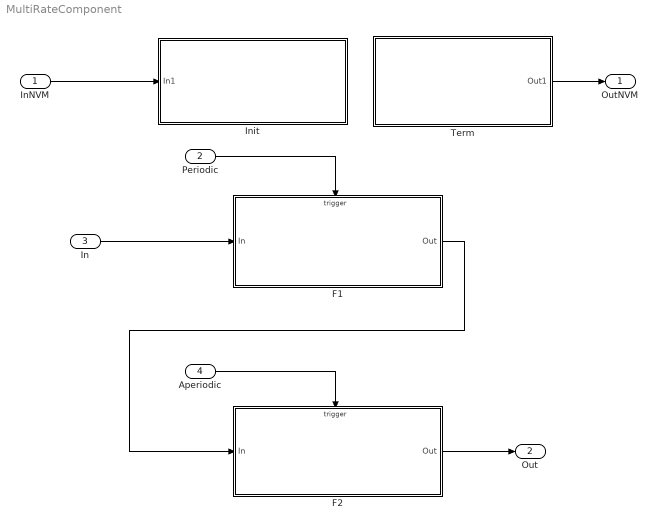
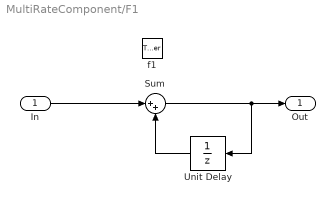
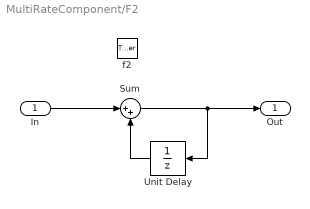
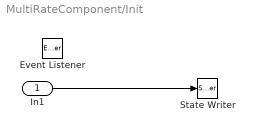
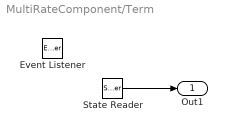
/*
 * File: MultiRateComponent.c
 *
 * Code generated for Simulink model 'MultiRateComponent'.
 *
 * Model version                  : 11.0
 * Simulink Coder version         : 25.2 (R2025b) 28-Jul-2025
 * C/C++ source code generated on : Thu Dec  4 04:23:54 2025
 *
 * Target selection: ert.tlc
 * Embedded hardware selection: Intel->x86-64 (Windows64)
 * Code generation objectives:
 *    1. Execution efficiency
 *    2. Traceability
 * Validation result: Not run
 */

#include "MultiRateComponent.h"
#include "rtwtypes.h"
#include "services.h"

/* Block signals and states (default storage) */
D_Work rtDWork;

/* Model step function for TID1 */
void MultiRateComponent_Periodic(void) /* Explicit Task: Periodic */
{
  real_T rtb_Sum;

  /* RootInportFunctionCallGenerator generated from: '<Root>/Periodic' incorporates:
   *  SubSystem: '<Root>/F1'
   */
  /* Sum: '<S1>/Sum' incorporates:
   *  Inport: '<Root>/In'
   *  UnitDelay: '<S1>/Unit Delay'
   */
  rtb_Sum = get_MultiRateComponent_Periodic_In() + rtDWork.F1State;

  /* Update for UnitDelay: '<S1>/Unit Delay' */
  rtDWork.F1State = rtb_Sum;

  /* End of Outputs for RootInportFunctionCallGenerator generated from: '<Root>/Periodic' */

  /* DataTransferBlock generated from: '<Root>/F1' */
  set_MultiRateComponent_Periodic_DataTransferAtF1Outport1(rtb_Sum);
}

/* Output function */
void MultiRateComponent_Aperiodic(void)
{
  real_T Out;

  /* RootInportFunctionCallGenerator generated from: '<Root>/Aperiodic' incorporates:
   *  SubSystem: '<Root>/F2'
   */
  /* Outport: '<Root>/Out' incorporates:
   *  DataTransferBlock generated from: '<Root>/F1'
   *  Sum: '<S2>/Sum'
   *  UnitDelay: '<S2>/Unit Delay'
   */
  Out = get_MultiRateComponent_Aperiodic_DataTransferAtF1Outport1() +
    rtDWork.F2State;

  /* Update for UnitDelay: '<S2>/Unit Delay' incorporates:
   *  Outport: '<Root>/Out'
   */
  rtDWork.F2State = Out;

  /* End of Outputs for RootInportFunctionCallGenerator generated from: '<Root>/Aperiodic' */

  /* Outport: '<Root>/Out' */
  set_MultiRateComponent_Aperiodic_Out(Out);
}
